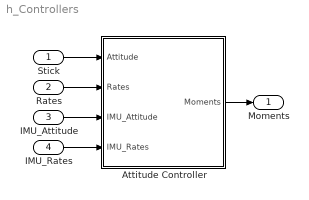
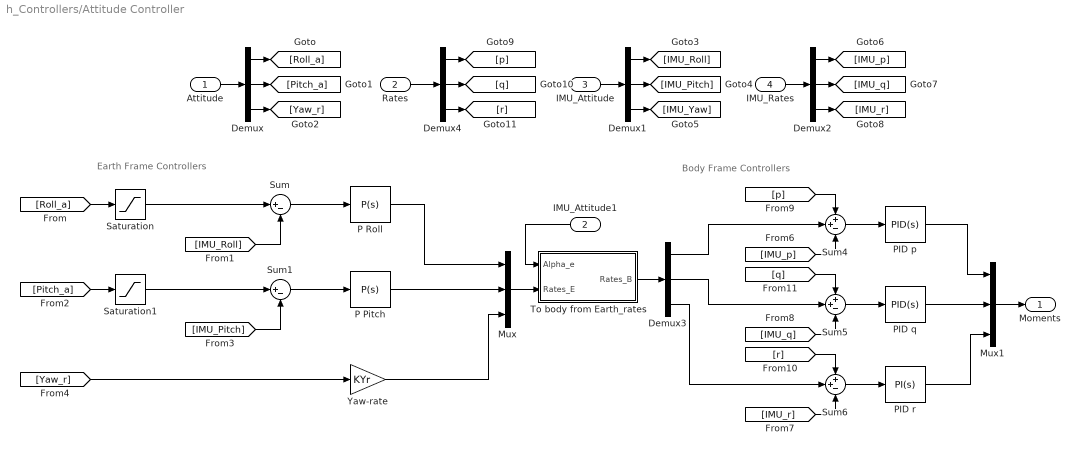
== matlab function h_Controllers/Attitude Controller/To body from Earth_rates ==
 function Rates_B = E(Alpha_e, Rates_E)
%#codegen
phi = Alpha_e(1);
theta = Alpha_e(2);

Sphi = sin(phi);
Cphi = cos(phi);
Stheta = sin(theta);
Ctheta = cos(theta);

E = [1      0        -Stheta   ;
     0     Cphi    Sphi*Ctheta ;
     0    -Sphi    Cphi*Ctheta];

Rates_B = E* Rates_E;

/*
 * h_Controllers.cpp
 *
 * Academic License - for use in teaching, academic research, and meeting
 * course requirements at degree granting institutions only.  Not for
 * government, commercial, or other organizational use.
 *
 * Code generation for model "h_Controllers".
 *
 * Model version              : 1.47
 * Simulink Coder version : 8.8 (R2015a) 09-Feb-2015
 * C++ source code generated on : Wed Oct 28 20:12:34 2015
 *
 * Target selection: grt.tlc
 * Note: GRT includes extra infrastructure and instrumentation for prototyping
 * Embedded hardware selection: ARM Compatible->ARM Cortex
 * Code generation objective: Execution efficiency
 * Validation result: Not run
 */

#include "h_Controllers.h"
#include "h_Controllers_private.h"

/*
 * This function updates continuous states using the ODE2 fixed-step
 * solver algorithm
 */
void h_ControllersModelClass::rt_ertODEUpdateContinuousStates(RTWSolverInfo *si )
{
  time_T tnew = rtsiGetSolverStopTime(si);
  time_T h = rtsiGetStepSize(si);
  real_T *x = rtsiGetContStates(si);
  ODE2_IntgData *id = (ODE2_IntgData *)rtsiGetSolverData(si);
  real_T *y = id->y;
  real_T *f0 = id->f[0];
  real_T *f1 = id->f[1];
  real_T temp;
  int_T i;
  int_T nXc = 5;
  rtsiSetSimTimeStep(si,MINOR_TIME_STEP);

  /* Save the state values at time t in y, we'll use x as ynew. */
  (void) memcpy(y, x,
                (uint_T)nXc*sizeof(real_T));

  /* Assumes that rtsiSetT and ModelOutputs are up-to-date */
  /* f0 = f(t,y) */
  rtsiSetdX(si, f0);
  h_Controllers_derivatives();

  /* f1 = f(t + h, y + h*f0) */
  for (i = 0; i < nXc; i++) {
    x[i] = y[i] + (h*f0[i]);
  }

  rtsiSetT(si, tnew);
  rtsiSetdX(si, f1);
  this->step();
  h_Controllers_derivatives();

  /* tnew = t + h
     ynew = y + (h/2)*(f0 + f1) */
  temp = 0.5*h;
  for (i = 0; i < nXc; i++) {
    x[i] = y[i] + temp*(f0[i] + f1[i]);
  }

  rtsiSetSimTimeStep(si,MAJOR_TIME_STEP);
}

/* Model step function */
void h_ControllersModelClass::step()
{
  real_T Sphi;
  real_T Cphi;
  real_T Ctheta;
  real_T rtb_Rates_B[3];
  real_T tmp[9];
  int32_T i;
  if (rtmIsMajorTimeStep((&h_Controllers_M))) {
    /* set solver stop time */
    if (!((&h_Controllers_M)->Timing.clockTick0+1)) {
      rtsiSetSolverStopTime(&(&h_Controllers_M)->solverInfo, (((&h_Controllers_M)
        ->Timing.clockTickH0 + 1) * (&h_Controllers_M)->Timing.stepSize0 *
        4294967296.0));
    } else {
      rtsiSetSolverStopTime(&(&h_Controllers_M)->solverInfo, (((&h_Controllers_M)
        ->Timing.clockTick0 + 1) * (&h_Controllers_M)->Timing.stepSize0 +
        (&h_Controllers_M)->Timing.clockTickH0 * (&h_Controllers_M)
        ->Timing.stepSize0 * 4294967296.0));
    }
  }                                    /* end MajorTimeStep */

  /* Update absolute time of base rate at minor time step */
  if (rtmIsMinorTimeStep((&h_Controllers_M))) {
    (&h_Controllers_M)->Timing.t[0] = rtsiGetT(&(&h_Controllers_M)->solverInfo);
  }

  /* MATLAB Function: '<S1>/To body from Earth_rates' incorporates:
   *  Inport: '<Root>/Rates'
   */
  /* MATLAB Function 'Attitude Controller/To body from Earth_rates': '<S7>:1' */
  /* '<S7>:1:3' */
  /* '<S7>:1:4' */
  /* '<S7>:1:6' */
  Sphi = sin(h_Controllers_U.Rates[0]);

  /* '<S7>:1:7' */
  Cphi = cos(h_Controllers_U.Rates[0]);

  /* '<S7>:1:8' */
  /* '<S7>:1:9' */
  Ctheta = cos(h_Controllers_U.Rates[1]);

  /* '<S7>:1:11' */
  /* '<S7>:1:15' */
  tmp[0] = 1.0;
  tmp[3] = 0.0;
  tmp[6] = -sin(h_Controllers_U.Rates[1]);
  tmp[1] = 0.0;
  tmp[4] = Cphi;
  tmp[7] = Sphi * Ctheta;
  tmp[2] = 0.0;
  tmp[5] = -Sphi;
  tmp[8] = Cphi * Ctheta;

  /* Gain: '<S3>/Proportional Gain' incorporates:
   *  Inport: '<Root>/Stick'
   *  Saturate: '<S1>/Saturation'
   */
  if (h_Controllers_U.Stick[0] > h_Controllers_P.rollMax) {
    Sphi = h_Controllers_P.rollMax;
  } else if (h_Controllers_U.Stick[0] < h_Controllers_P.rollMin) {
    Sphi = h_Controllers_P.rollMin;
  } else {
    Sphi = h_Controllers_U.Stick[0];
  }

  /* SignalConversion: '<S7>/TmpSignal ConversionAt SFunction Inport2' incorporates:
   *  Gain: '<S3>/Proportional Gain'
   *  Inport: '<Root>/IMU_Attitude'
   *  MATLAB Function: '<S1>/To body from Earth_rates'
   *  Saturate: '<S1>/Saturation'
   *  Sum: '<S1>/Sum'
   */
  Ctheta = (Sphi - h_Controllers_U.IMU_Attitude[0]) * h_Controllers_P.KRP;

  /* Gain: '<S2>/Proportional Gain' incorporates:
   *  Inport: '<Root>/Stick'
   *  Saturate: '<S1>/Saturation1'
   */
  if (h_Controllers_U.Stick[1] > h_Controllers_P.pitchMax) {
    Sphi = h_Controllers_P.pitchMax;
  } else if (h_Controllers_U.Stick[1] < h_Controllers_P.pitchMin) {
    Sphi = h_Controllers_P.pitchMin;
  } else {
    Sphi = h_Controllers_U.Stick[1];
  }

  /* SignalConversion: '<S7>/TmpSignal ConversionAt SFunction Inport2' incorporates:
   *  Gain: '<S1>/Yaw-rate'
   *  Gain: '<S2>/Proportional Gain'
   *  Inport: '<Root>/IMU_Attitude'
   *  Inport: '<Root>/Stick'
   *  MATLAB Function: '<S1>/To body from Earth_rates'
   *  Saturate: '<S1>/Saturation1'
   *  Sum: '<S1>/Sum1'
   */
  Sphi = (Sphi - h_Controllers_U.IMU_Attitude[1]) * h_Controllers_P.KPP;
  Cphi = h_Controllers_P.KYr * h_Controllers_U.Stick[2];

  /* MATLAB Function: '<S1>/To body from Earth_rates' */
  for (i = 0; i < 3; i++) {
    rtb_Rates_B[i] = tmp[i + 6] * Cphi + (tmp[i + 3] * Sphi + tmp[i] * Ctheta);
  }

  /* Sum: '<S1>/Sum4' incorporates:
   *  Inport: '<Root>/IMU_Rates'
   *  Inport: '<Root>/Rates'
   */
  Sphi = (h_Controllers_U.Rates[0] + rtb_Rates_B[0]) -
    h_Controllers_U.IMU_Rates[0];

  /* Gain: '<S4>/Filter Coefficient' incorporates:
   *  Gain: '<S4>/Derivative Gain'
   *  Integrator: '<S4>/Filter'
   *  Sum: '<S4>/SumD'
   */
  h_Controllers_B.FilterCoefficient = (h_Controllers_P.Kdp * Sphi -
    h_Controllers_X.Filter_CSTATE) * h_Controllers_P.N;

  /* Sum: '<S1>/Sum5' incorporates:
   *  Inport: '<Root>/IMU_Rates'
   *  Inport: '<Root>/Rates'
   */
  Cphi = (h_Controllers_U.Rates[1] + rtb_Rates_B[1]) -
    h_Controllers_U.IMU_Rates[1];

  /* Gain: '<S5>/Filter Coefficient' incorporates:
   *  Gain: '<S5>/Derivative Gain'
   *  Integrator: '<S5>/Filter'
   *  Sum: '<S5>/SumD'
   */
  h_Controllers_B.FilterCoefficient_p = (h_Controllers_P.Kdq * Cphi -
    h_Controllers_X.Filter_CSTATE_d) * h_Controllers_P.N;

  /* Sum: '<S1>/Sum6' incorporates:
   *  Inport: '<Root>/IMU_Rates'
   *  Inport: '<Root>/Rates'
   */
  Ctheta = (h_Controllers_U.Rates[2] + rtb_Rates_B[2]) -
    h_Controllers_U.IMU_Rates[2];

  /* Outport: '<Root>/Moments' incorporates:
   *  Gain: '<S4>/Proportional Gain'
   *  Gain: '<S5>/Proportional Gain'
   *  Gain: '<S6>/Proportional Gain'
   *  Integrator: '<S4>/Integrator'
   *  Integrator: '<S5>/Integrator'
   *  Integrator: '<S6>/Integrator'
   *  Sum: '<S4>/Sum'
   *  Sum: '<S5>/Sum'
   *  Sum: '<S6>/Sum'
   */
  h_Controllers_Y.Moments[0] = (h_Controllers_P.Kpp * Sphi +
    h_Controllers_X.Integrator_CSTATE) + h_Controllers_B.FilterCoefficient;
  h_Controllers_Y.Moments[1] = (h_Controllers_P.Kpq * Cphi +
    h_Controllers_X.Integrator_CSTATE_f) + h_Controllers_B.FilterCoefficient_p;
  h_Controllers_Y.Moments[2] = h_Controllers_P.Kpr * Ctheta +
    h_Controllers_X.Integrator_CSTATE_a;

  /* Gain: '<S4>/Integral Gain' */
  h_Controllers_B.IntegralGain = h_Controllers_P.Kip * Sphi;

  /* Gain: '<S5>/Integral Gain' */
  h_Controllers_B.IntegralGain_o = h_Controllers_P.Kiq * Cphi;

  /* Gain: '<S6>/Integral Gain' */
  h_Controllers_B.IntegralGain_n = h_Controllers_P.Kir * Ctheta;
  if (rtmIsMajorTimeStep((&h_Controllers_M))) {
    rt_ertODEUpdateContinuousStates(&(&h_Controllers_M)->solverInfo);

    /* Update absolute time for base rate */
    /* The "clockTick0" counts the number of times the code of this task has
     * been executed. The absolute time is the multiplication of "clockTick0"
     * and "Timing.stepSize0". Size of "clockTick0" ensures timer will not
     * overflow during the application lifespan selected.
     * Timer of this task consists of two 32 bit unsigned integers.
     * The two integers represent the low bits Timing.clockTick0 and the high bits
     * Timing.clockTickH0. When the low bit overflows to 0, the high bits increment.
     */
    if (!(++(&h_Controllers_M)->Timing.clockTick0)) {
      ++(&h_Controllers_M)->Timing.clockTickH0;
    }

    (&h_Controllers_M)->Timing.t[0] = rtsiGetSolverStopTime(&(&h_Controllers_M
      )->solverInfo);

    {
      /* Update absolute timer for sample time: [0.01s, 0.0s] */
      /* The "clockTick1" counts the number of times the code of this task has
       * been executed. The resolution of this integer timer is 0.01, which is the step size
       * of the task. Size of "clockTick1" ensures timer will not overflow during the
       * application lifespan selected.
       * Timer of this task consists of two 32 bit unsigned integers.
       * The two integers represent the low bits Timing.clockTick1 and the high bits
       * Timing.clockTickH1. When the low bit overflows to 0, the high bits increment.
       */
      (&h_Controllers_M)->Timing.clockTick1++;
      if (!(&h_Controllers_M)->Timing.clockTick1) {
        (&h_Controllers_M)->Timing.clockTickH1++;
      }
    }
  }                                    /* end MajorTimeStep */
}
